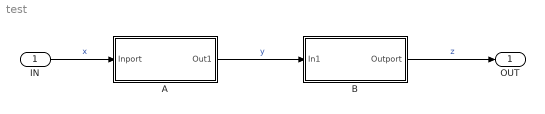
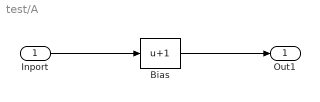
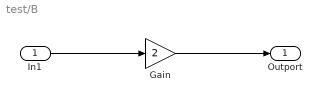
/*
 * File: test.c
 *
 * Code generated for Simulink model 'test'.
 *
 * Model version                  : 1.1
 * Simulink Coder version         : 9.6 (R2021b) 14-May-2021
 * C/C++ source code generated on : Wed Nov  2 23:12:51 2022
 *
 * Target selection: ert.tlc
 * Embedded hardware selection: Intel->x86-64 (Windows64)
 * Code generation objectives: Unspecified
 * Validation result: Not run
 */

#include "test.h"

/* External inputs (root inport signals with default storage) */
ExtU_test_T test_U;

/* External outputs (root outports fed by signals with default storage) */
ExtY_test_T test_Y;

/* Real-time model */
static RT_MODEL_test_T test_M_;
RT_MODEL_test_T *const test_M = &test_M_;

/* Model step function */
void test_step(void)
{
  /* Outport: '<Root>/OUT' incorporates:
   *  Bias: '<S1>/Bias'
   *  Gain: '<S2>/Gain'
   *  Inport: '<Root>/IN'
   */
  test_Y.OUT = (test_U.x + 1.0) * 2.0;
}
